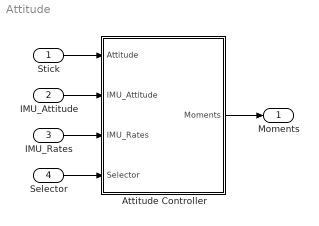
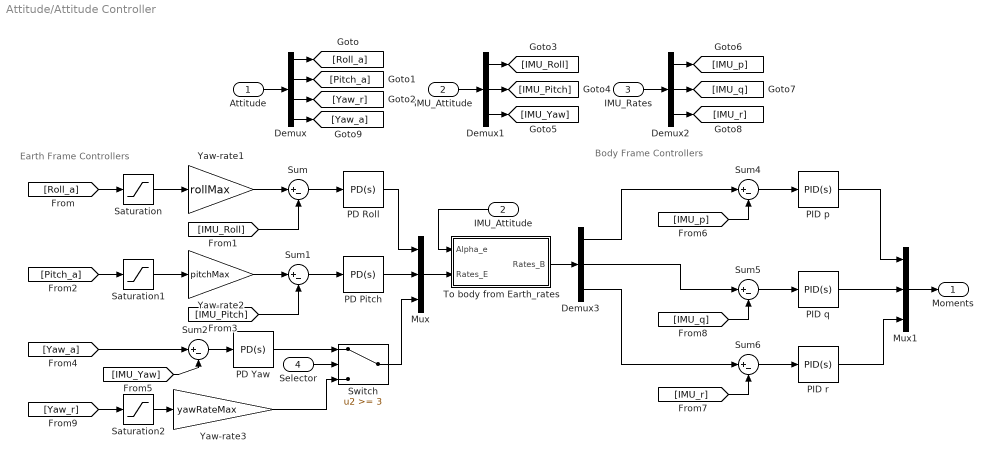
== matlab function Attitude/Attitude Controller/To body from Earth_rates ==
 function Rates_B = E(Alpha_e, Rates_E)
%#codegen
phi = Alpha_e(1);
theta = Alpha_e(2);

Sphi = sin(phi);
Cphi = cos(phi);
Stheta = sin(theta);
Ctheta = cos(theta);

E = [1      0        -Stheta   ;
     0     Cphi    Sphi*Ctheta ;
     0    -Sphi    Cphi*Ctheta];

Rates_B = E* Rates_E;

/*
 * Attitude.cpp
 *
 * Academic License - for use in teaching, academic research, and meeting
 * course requirements at degree granting institutions only.  Not for
 * government, commercial, or other organizational use.
 *
 * Code generation for model "Attitude".
 *
 * Model version              : 1.88
 * Simulink Coder version : 8.8.1 (R2015aSP1) 04-Sep-2015
 * C++ source code generated on : Thu May 19 10:17:03 2016
 *
 * Target selection: grt.tlc
 * Note: GRT includes extra infrastructure and instrumentation for prototyping
 * Embedded hardware selection: ARM Compatible->ARM Cortex
 * Code generation objective: Execution efficiency
 * Validation result: Not run
 */

#include "Attitude.h"
#include "Attitude_private.h"

/*
 * This function updates continuous states using the ODE2 fixed-step
 * solver algorithm
 */
void AttitudeModelClass::rt_ertODEUpdateContinuousStates(RTWSolverInfo *si )
{
  time_T tnew = rtsiGetSolverStopTime(si);
  time_T h = rtsiGetStepSize(si);
  real_T *x = rtsiGetContStates(si);
  ODE2_IntgData *id = (ODE2_IntgData *)rtsiGetSolverData(si);
  real_T *y = id->y;
  real_T *f0 = id->f[0];
  real_T *f1 = id->f[1];
  real_T temp;
  int_T i;
  int_T nXc = 9;
  rtsiSetSimTimeStep(si,MINOR_TIME_STEP);

  /* Save the state values at time t in y, we'll use x as ynew. */
  (void) memcpy(y, x,
                (uint_T)nXc*sizeof(real_T));

  /* Assumes that rtsiSetT and ModelOutputs are up-to-date */
  /* f0 = f(t,y) */
  rtsiSetdX(si, f0);
  Attitude_derivatives();

  /* f1 = f(t + h, y + h*f0) */
  for (i = 0; i < nXc; i++) {
    x[i] = y[i] + (h*f0[i]);
  }

  rtsiSetT(si, tnew);
  rtsiSetdX(si, f1);
  this->step();
  Attitude_derivatives();

  /* tnew = t + h
     ynew = y + (h/2)*(f0 + f1) */
  temp = 0.5*h;
  for (i = 0; i < nXc; i++) {
    x[i] = y[i] + temp*(f0[i] + f1[i]);
  }

  rtsiSetSimTimeStep(si,MAJOR_TIME_STEP);
}

/* Model step function */
void AttitudeModelClass::step()
{
  real_T Sphi;
  real_T Cphi;
  real_T Ctheta;
  real_T rtb_Sum4;
  real_T rtb_ProportionalGain;
  real_T rtb_ProportionalGain_h;
  real_T rtb_Rates_B[3];
  real_T rtb_Sum_k;
  real_T rtb_Saturate_l;
  real_T rtb_Switch;
  real_T tmp[9];
  int32_T i;
  if (rtmIsMajorTimeStep((&Attitude_M))) {
    /* set solver stop time */
    if (!((&Attitude_M)->Timing.clockTick0+1)) {
      rtsiSetSolverStopTime(&(&Attitude_M)->solverInfo, (((&Attitude_M)
        ->Timing.clockTickH0 + 1) * (&Attitude_M)->Timing.stepSize0 *
        4294967296.0));
    } else {
      rtsiSetSolverStopTime(&(&Attitude_M)->solverInfo, (((&Attitude_M)
        ->Timing.clockTick0 + 1) * (&Attitude_M)->Timing.stepSize0 +
        (&Attitude_M)->Timing.clockTickH0 * (&Attitude_M)->Timing.stepSize0 *
        4294967296.0));
    }
  }                                    /* end MajorTimeStep */

  /* Update absolute time of base rate at minor time step */
  if (rtmIsMinorTimeStep((&Attitude_M))) {
    (&Attitude_M)->Timing.t[0] = rtsiGetT(&(&Attitude_M)->solverInfo);
  }

  /* Saturate: '<S1>/Saturation' incorporates:
   *  Inport: '<Root>/Stick'
   */
  if (Attitude_U.Stick[0] > Attitude_P.Saturation_UpperSat) {
    rtb_Sum4 = Attitude_P.Saturation_UpperSat;
  } else if (Attitude_U.Stick[0] < Attitude_P.Saturation_LowerSat) {
    rtb_Sum4 = Attitude_P.Saturation_LowerSat;
  } else {
    rtb_Sum4 = Attitude_U.Stick[0];
  }

  /* Sum: '<S1>/Sum' incorporates:
   *  Gain: '<S1>/Yaw-rate1'
   *  Inport: '<Root>/IMU_Attitude'
   *  Saturate: '<S1>/Saturation'
   */
  rtb_Sum4 = Attitude_P.rollMax * rtb_Sum4 - Attitude_U.IMU_Attitude[0];

  /* Gain: '<S3>/Proportional Gain' */
  rtb_ProportionalGain = Attitude_P.KRP * rtb_Sum4;

  /* Gain: '<S3>/Filter Coefficient' incorporates:
   *  Gain: '<S3>/Derivative Gain'
   *  Integrator: '<S3>/Filter'
   *  Sum: '<S3>/SumD'
   */
  Attitude_B.FilterCoefficient = (Attitude_P.KRD * rtb_Sum4 -
    Attitude_X.Filter_CSTATE) * Attitude_P.N;

  /* Saturate: '<S1>/Saturation1' incorporates:
   *  Inport: '<Root>/Stick'
   */
  if (Attitude_U.Stick[1] > Attitude_P.Saturation1_UpperSat) {
    rtb_Sum4 = Attitude_P.Saturation1_UpperSat;
  } else if (Attitude_U.Stick[1] < Attitude_P.Saturation1_LowerSat) {
    rtb_Sum4 = Attitude_P.Saturation1_LowerSat;
  } else {
    rtb_Sum4 = Attitude_U.Stick[1];
  }

  /* Sum: '<S1>/Sum1' incorporates:
   *  Gain: '<S1>/Yaw-rate2'
   *  Inport: '<Root>/IMU_Attitude'
   *  Saturate: '<S1>/Saturation1'
   */
  rtb_Sum4 = Attitude_P.pitchMax * rtb_Sum4 - Attitude_U.IMU_Attitude[1];

  /* Gain: '<S2>/Proportional Gain' */
  rtb_ProportionalGain_h = Attitude_P.KPP * rtb_Sum4;

  /* Gain: '<S2>/Filter Coefficient' incorporates:
   *  Gain: '<S2>/Derivative Gain'
   *  Integrator: '<S2>/Filter'
   *  Sum: '<S2>/SumD'
   */
  Attitude_B.FilterCoefficient_e = (Attitude_P.KPD * rtb_Sum4 -
    Attitude_X.Filter_CSTATE_m) * Attitude_P.N;

  /* Sum: '<S1>/Sum2' incorporates:
   *  Inport: '<Root>/IMU_Attitude'
   *  Inport: '<Root>/Stick'
   */
  rtb_Sum4 = Attitude_U.Stick[3] - Attitude_U.IMU_Attitude[2];

  /* Gain: '<S4>/Filter Coefficient' incorporates:
   *  Gain: '<S4>/Derivative Gain'
   *  Integrator: '<S4>/Filter'
   *  Sum: '<S4>/SumD'
   */
  Attitude_B.FilterCoefficient_d = (Attitude_P.KYD * rtb_Sum4 -
    Attitude_X.Filter_CSTATE_mi) * Attitude_P.N;

  /* Switch: '<S1>/Switch' incorporates:
   *  Gain: '<S1>/Yaw-rate3'
   *  Gain: '<S4>/Proportional Gain'
   *  Inport: '<Root>/Selector'
   *  Inport: '<Root>/Stick'
   *  Saturate: '<S1>/Saturation2'
   *  Sum: '<S4>/Sum'
   */
  if (Attitude_U.Selector >= Attitude_P.Switch_Threshold) {
    rtb_Switch = Attitude_P.KYP * rtb_Sum4 + Attitude_B.FilterCoefficient_d;
  } else {
    if (Attitude_U.Stick[2] > Attitude_P.Saturation2_UpperSat) {
      /* Saturate: '<S1>/Saturation2' */
      rtb_Sum4 = Attitude_P.Saturation2_UpperSat;
    } else if (Attitude_U.Stick[2] < Attitude_P.Saturation2_LowerSat) {
      /* Saturate: '<S1>/Saturation2' */
      rtb_Sum4 = Attitude_P.Saturation2_LowerSat;
    } else {
      /* Saturate: '<S1>/Saturation2' incorporates:
       *  Inport: '<Root>/Stick'
       */
      rtb_Sum4 = Attitude_U.Stick[2];
    }

    rtb_Switch = Attitude_P.yawRateMax * rtb_Sum4;
  }

  /* End of Switch: '<S1>/Switch' */

  /* MATLAB Function: '<S1>/To body from Earth_rates' incorporates:
   *  Inport: '<Root>/IMU_Attitude'
   */
  /* MATLAB Function 'Attitude Controller/To body from Earth_rates': '<S8>:1' */
  /* '<S8>:1:3' */
  /* '<S8>:1:4' */
  /* '<S8>:1:6' */
  Sphi = sin(Attitude_U.IMU_Attitude[0]);

  /* '<S8>:1:7' */
  Cphi = cos(Attitude_U.IMU_Attitude[0]);

  /* '<S8>:1:8' */
  /* '<S8>:1:9' */
  Ctheta = cos(Attitude_U.IMU_Attitude[1]);

  /* '<S8>:1:11' */
  /* '<S8>:1:15' */
  tmp[0] = 1.0;
  tmp[3] = 0.0;
  tmp[6] = -sin(Attitude_U.IMU_Attitude[1]);
  tmp[1] = 0.0;
  tmp[4] = Cphi;
  tmp[7] = Sphi * Ctheta;
  tmp[2] = 0.0;
  tmp[5] = -Sphi;
  tmp[8] = Cphi * Ctheta;

  /* SignalConversion: '<S8>/TmpSignal ConversionAt SFunction Inport2' incorporates:
   *  MATLAB Function: '<S1>/To body from Earth_rates'
   *  Sum: '<S2>/Sum'
   *  Sum: '<S3>/Sum'
   */
  Sphi = rtb_ProportionalGain + Attitude_B.FilterCoefficient;
  rtb_Sum4 = rtb_ProportionalGain_h + Attitude_B.FilterCoefficient_e;

  /* MATLAB Function: '<S1>/To body from Earth_rates' incorporates:
   *  SignalConversion: '<S8>/TmpSignal ConversionAt SFunction Inport2'
   */
  for (i = 0; i < 3; i++) {
    rtb_Rates_B[i] = tmp[i + 6] * rtb_Switch + (tmp[i + 3] * rtb_Sum4 + tmp[i] *
      Sphi);
  }

  /* Sum: '<S1>/Sum4' incorporates:
   *  Inport: '<Root>/IMU_Rates'
   */
  rtb_Sum4 = rtb_Rates_B[0] - Attitude_U.IMU_Rates[0];

  /* Gain: '<S5>/Filter Coefficient' incorporates:
   *  Gain: '<S5>/Derivative Gain'
   *  Integrator: '<S5>/Filter'
   *  Sum: '<S5>/SumD'
   */
  Attitude_B.FilterCoefficient_o = (Attitude_P.Kdp * rtb_Sum4 -
    Attitude_X.Filter_CSTATE_k) * Attitude_P.N;

  /* Sum: '<S5>/Sum' incorporates:
   *  Gain: '<S5>/Proportional Gain'
   *  Integrator: '<S5>/Integrator'
   */
  rtb_Switch = (Attitude_P.Kpp * rtb_Sum4 + Attitude_X.Integrator_CSTATE) +
    Attitude_B.FilterCoefficient_o;

  /* Saturate: '<S5>/Saturate' */
  if (rtb_Switch > Attitude_P.satp) {
    Sphi = Attitude_P.satp;
  } else if (rtb_Switch < -Attitude_P.satp) {
    Sphi = -Attitude_P.satp;
  } else {
    Sphi = rtb_Switch;
  }

  /* End of Saturate: '<S5>/Saturate' */

  /* Sum: '<S1>/Sum5' incorporates:
   *  Inport: '<Root>/IMU_Rates'
   */
  Cphi = rtb_Rates_B[1] - Attitude_U.IMU_Rates[1];

  /* Gain: '<S6>/Filter Coefficient' incorporates:
   *  Gain: '<S6>/Derivative Gain'
   *  Integrator: '<S6>/Filter'
   *  Sum: '<S6>/SumD'
   */
  Attitude_B.FilterCoefficient_b = (Attitude_P.Kdq * Cphi -
    Attitude_X.Filter_CSTATE_e) * Attitude_P.N;

  /* Sum: '<S6>/Sum' incorporates:
   *  Gain: '<S6>/Proportional Gain'
   *  Integrator: '<S6>/Integrator'
   */
  Ctheta = (Attitude_P.Kpq * Cphi + Attitude_X.Integrator_CSTATE_f) +
    Attitude_B.FilterCoefficient_b;

  /* Saturate: '<S6>/Saturate' */
  if (Ctheta > Attitude_P.satq) {
    rtb_ProportionalGain = Attitude_P.satq;
  } else if (Ctheta < -Attitude_P.satq) {
    rtb_ProportionalGain = -Attitude_P.satq;
  } else {
    rtb_ProportionalGain = Ctheta;
  }

  /* End of Saturate: '<S6>/Saturate' */

  /* Sum: '<S1>/Sum6' incorporates:
   *  Inport: '<Root>/IMU_Rates'
   */
  rtb_ProportionalGain_h = rtb_Rates_B[2] - Attitude_U.IMU_Rates[2];

  /* Gain: '<S7>/Filter Coefficient' incorporates:
   *  Gain: '<S7>/Derivative Gain'
   *  Integrator: '<S7>/Filter'
   *  Sum: '<S7>/SumD'
   */
  Attitude_B.FilterCoefficient_oo = (Attitude_P.Kdr * rtb_ProportionalGain_h -
    Attitude_X.Filter_CSTATE_g) * Attitude_P.N;

  /* Sum: '<S7>/Sum' incorporates:
   *  Gain: '<S7>/Proportional Gain'
   *  Integrator: '<S7>/Integrator'
   */
  rtb_Sum_k = (Attitude_P.Kpr * rtb_ProportionalGain_h +
               Attitude_X.Integrator_CSTATE_h) + Attitude_B.FilterCoefficient_oo;

  /* Saturate: '<S7>/Saturate' */
  if (rtb_Sum_k > Attitude_P.satr) {
    rtb_Saturate_l = Attitude_P.satr;
  } else if (rtb_Sum_k < -Attitude_P.satr) {
    rtb_Saturate_l = -Attitude_P.satr;
  } else {
    rtb_Saturate_l = rtb_Sum_k;
  }

  /* End of Saturate: '<S7>/Saturate' */

  /* Outport: '<Root>/Moments' */
  Attitude_Y.Moments[0] = Sphi;
  Attitude_Y.Moments[1] = rtb_ProportionalGain;
  Attitude_Y.Moments[2] = rtb_Saturate_l;

  /* Sum: '<S5>/SumI1' incorporates:
   *  Gain: '<S5>/Integral Gain'
   *  Gain: '<S5>/Kb'
   *  Sum: '<S5>/SumI2'
   */
  Attitude_B.SumI1 = (Sphi - rtb_Switch) * Attitude_P.Kbp + Attitude_P.Kip *
    rtb_Sum4;

  /* Sum: '<S6>/SumI1' incorporates:
   *  Gain: '<S6>/Integral Gain'
   *  Gain: '<S6>/Kb'
   *  Sum: '<S6>/SumI2'
   */
  Attitude_B.SumI1_e = (rtb_ProportionalGain - Ctheta) * Attitude_P.Kbq +
    Attitude_P.Kiq * Cphi;

  /* Sum: '<S7>/SumI1' incorporates:
   *  Gain: '<S7>/Integral Gain'
   *  Gain: '<S7>/Kb'
   *  Sum: '<S7>/SumI2'
   */
  Attitude_B.SumI1_k = (rtb_Saturate_l - rtb_Sum_k) * Attitude_P.Kbr +
    Attitude_P.Kir * rtb_ProportionalGain_h;
  if (rtmIsMajorTimeStep((&Attitude_M))) {
    rt_ertODEUpdateContinuousStates(&(&Attitude_M)->solverInfo);

    /* Update absolute time for base rate */
    /* The "clockTick0" counts the number of times the code of this task has
     * been executed. The absolute time is the multiplication of "clockTick0"
     * and "Timing.stepSize0". Size of "clockTick0" ensures timer will not
     * overflow during the application lifespan selected.
     * Timer of this task consists of two 32 bit unsigned integers.
     * The two integers represent the low bits Timing.clockTick0 and the high bits
     * Timing.clockTickH0. When the low bit overflows to 0, the high bits increment.
     */
    if (!(++(&Attitude_M)->Timing.clockTick0)) {
      ++(&Attitude_M)->Timing.clockTickH0;
    }

    (&Attitude_M)->Timing.t[0] = rtsiGetSolverStopTime(&(&Attitude_M)
      ->solverInfo);

    {
      /* Update absolute timer for sample time: [0.01s, 0.0s] */
      /* The "clockTick1" counts the number of times the code of this task has
       * been executed. The resolution of this integer timer is 0.01, which is the step size
       * of the task. Size of "clockTick1" ensures timer will not overflow during the
       * application lifespan selected.
       * Timer of this task consists of two 32 bit unsigned integers.
       * The two integers represent the low bits Timing.clockTick1 and the high bits
       * Timing.clockTickH1. When the low bit overflows to 0, the high bits increment.
       */
      (&Attitude_M)->Timing.clockTick1++;
      if (!(&Attitude_M)->Timing.clockTick1) {
        (&Attitude_M)->Timing.clockTickH1++;
      }
    }
  }                                    /* end MajorTimeStep */
}
